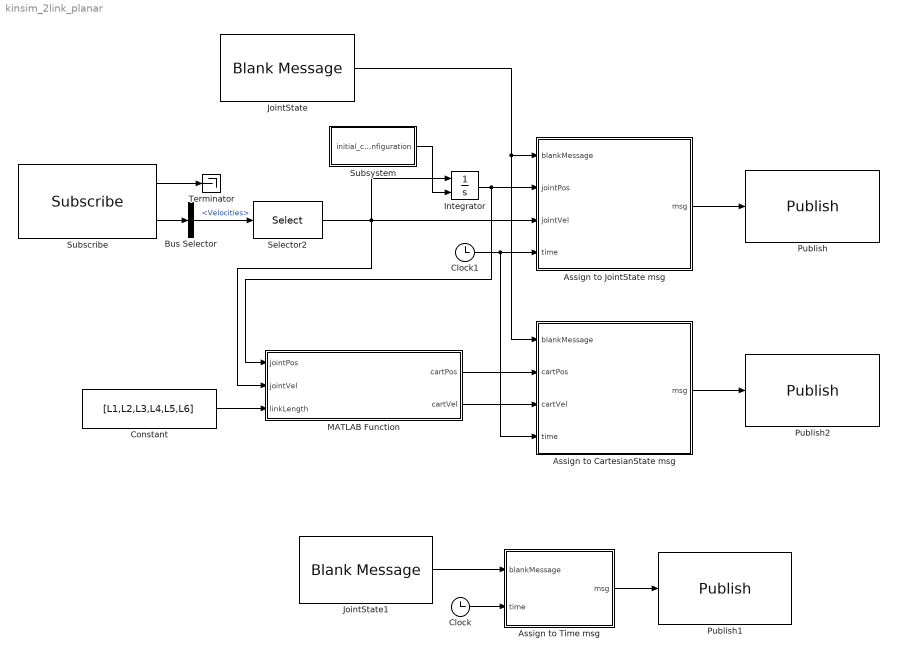
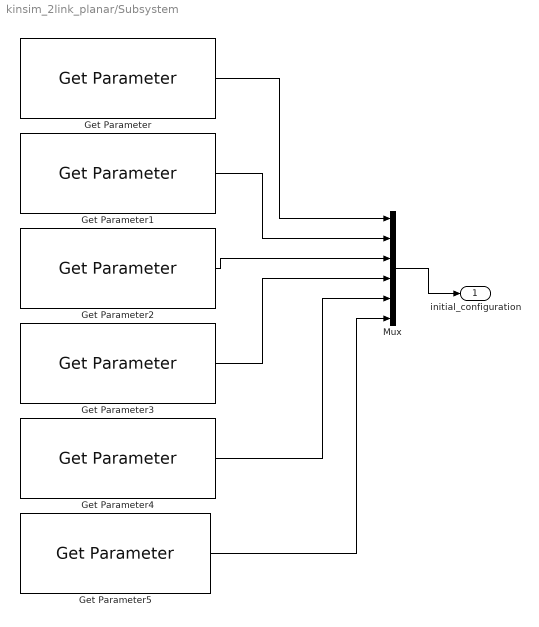
== matlab function kinsim_2link_planar/Assign to Time msg ==
function msg = assign_Time(blankMessage,time)
%#codegen

% Assign the output message to be the same with input blank message
msg = blankMessage;

% Convert and set time
msg.Clock_.Sec  = fix(time);
msg.Clock_.Nsec = fix((time-fix(time))*1e9);

== matlab function kinsim_2link_planar/Assign to JointState msg ==
function msg = assign_JointState(blankMessage,jointPos,jointVel,time)
%#codegen

% Assign the output message to be the same with input blank message
msg = blankMessage;

% Initialize time stamp
msg.Header.Stamp.Sec  = fix(time);
msg.Header.Stamp.Nsec = fix((time-fix(time))*1e9);

% Set the number of strings in the string array, and joint positions/velocities in the position/velocity array
numJoints = length(jointPos);
msg.Name_SL_Info.CurrentLength = uint32(numJoints);
msg.Position_SL_Info.CurrentLength = uint32(numJoints);
msg.Velocity_SL_Info.CurrentLength = uint32(numJoints);

% Set the individual components in the message arrays
strArrayToAssign = {'edo_joint_1', 'edo_joint_2', 'edo_joint_3', 'edo_joint_4', 'edo_joint_5', 'edo_joint_6'};

for idx=1:numJoints
    str = strArrayToAssign{idx};
    strLength = length(str);
    msg.Name(idx).Data(1:strLength) = uint8(str);
    msg.Name(idx).Data_SL_Info.CurrentLength = uint32(strLength);

    msg.Position(idx) = jointPos(idx);
    msg.Velocity(idx) = jointVel(idx);
end

== matlab function kinsim_2link_planar/MATLAB Function ==
function [cartPos, cartVel] = forward_kinematics_2link(jointPos,jointVel,linkLength)

cartPos = zeros(1,2);
cartVel = zeros(1,2);

L1 = linkLength(1);
L2 = linkLength(2);
L3 = linkLength(3);
L4 = linkLength(4);
L5 = linkLength(5);
L6 = linkLength(6);
q1 = jointPos(1);
q2 = jointPos(2);
q3 = jointPos(3);
q4 = jointPos(4);
q5 = jointPos(5);
q6 = jointPos(6);
qv1 = jointVel(1);
qv2 = jointVel(2);
qv3 = jointVel(3);
qv4 = jointVel(4);
qv5 = jointVel(5);
qv6 = jointVel(6);

cartPos(1) = L1*cos(q1)+L2*cos(q1+q2)+L3*cos(q1+q2+q3)+L4*cos(q1+q2+q3+q4)+L5*cos(q1+q2+q3+q4+q5)+L6*cos(q1+q2+q3+q4+q5+q6);
cartPos(2) = L1*sin(q1)+L2*sin(q1+q2)+L3*sin(q1+q2+q3)+L4*sin(q1+q2+q3+q4)+L5*sin(q1+q2+q3+q4+q5)+L6*sin(q1+q2+q3+q4+q5+q6);
cartVel(1) = -L1*qv1*sin(q1)-L2*(qv1+qv2)*sin(q1+q2)-L3*(qv1+qv2+qv3)*sin(q1+q2+q3)-L4*(qv1+qv2+qv3+qv4)*sin(q1+q2+q3+q4)-L5*(qv1+qv2+qv3+qv4+qv5)*sin(q1+q2+q3+q4+q5)-L6*(qv1+qv2+qv3+qv4+qv5+qv6)*sin(q1+q2+q3+q4+q5+q6);
cartVel(2) = L1*qv1*cos(q1)+L2*(qv1+qv2)*cos(q1+q2)+L3*(qv1+qv2+qv3)*cos(q1+q2+q3)+L4*(qv1+qv2+qv3+qv4)*cos(q1+q2+q3+q4)+L5*(qv1+qv2+qv3+qv4+qv5)*cos(q1+q2+q3+q4+q5)+L6*(qv1+qv2+qv3+qv4+qv5+qv6)*cos(q1+q2+q3+q4+q5+q6);

== matlab function kinsim_2link_planar/Assign to CartesianState msg ==
function msg = assign_CartesianState(blankMessage,cartPos,cartVel,time)
%#codegen

% Assign the output message to be the same with input blank message
msg = blankMessage;

% Initialize time stamp
msg.Header.Stamp.Sec  = fix(time);
msg.Header.Stamp.Nsec = fix((time-fix(time))*1e9);

% Set the number of strings in the string array, and joint positions/velocities in the position/velocity array
numCoordinates = length(cartPos);
msg.Name_SL_Info.CurrentLength = uint32(numCoordinates);
msg.Position_SL_Info.CurrentLength = uint32(numCoordinates);
msg.Velocity_SL_Info.CurrentLength = uint32(numCoordinates);

% Set the individual components in the message arrays
strArrayToAssign = {'edo_joint_1', 'edo_joint_2', 'edo_joint_3', 'edo_joint_4', 'edo_joint_5', 'edo_joint_6'};

for idx=1:numCoordinates
    str = strArrayToAssign{idx};
    strLength = length(str);
    msg.Name(idx).Data(1:strLength) = uint8(str);
    msg.Name(idx).Data_SL_Info.CurrentLength = uint32(strLength);

    msg.Position(idx) = cartPos(idx);
    msg.Velocity(idx) = cartVel(idx);
end

//
// Academic License - for use in teaching, academic research, and meeting
// course requirements at degree granting institutions only.  Not for
// government, commercial, or other organizational use.
//
// File: kinsim_2link_planar.cpp
//
// Code generated for Simulink model 'kinsim_2link_planar'.
//
// Model version                  : 1.126
// Simulink Coder version         : 9.3 (R2020a) 18-Nov-2019
// C/C++ source code generated on : Tue May 12 16:23:02 2020
//
// Target selection: ert.tlc
// Embedded hardware selection: Generic->Unspecified (assume 32-bit Generic)
// Code generation objectives: Unspecified
// Validation result: Not run
//
#include "kinsim_2link_planar.h"
#include "kinsim_2link_planar_private.h"

// Block signals (default storage)
B_kinsim_2link_planar_T kinsim_2link_planar_B;

// Continuous states
X_kinsim_2link_planar_T kinsim_2link_planar_X;

// Block states (default storage)
DW_kinsim_2link_planar_T kinsim_2link_planar_DW;

// Real-time model
RT_MODEL_kinsim_2link_planar_T kinsim_2link_planar_M_ =
  RT_MODEL_kinsim_2link_planar_T();
RT_MODEL_kinsim_2link_planar_T *const kinsim_2link_planar_M =
  &kinsim_2link_planar_M_;

// Forward declaration for local functions
static void kinsim_2link_pl_SystemCore_step(boolean_T *varargout_1, real_T
  varargout_2_Positions[128], uint32_T *varargout_2_Positions_SL_Info_C,
  uint32_T *varargout_2_Positions_SL_Info_R, real_T varargout_2_Velocities[128],
  uint32_T *varargout_2_Velocities_SL_Info_, uint32_T
  *varargout_2_Velocities_SL_Inf_0, real_T varargout_2_Accelerations[128],
  uint32_T *varargout_2_Accelerations_SL_In, uint32_T
  *varargout_2_Accelerations_SL__0, real_T varargout_2_Effort[128], uint32_T
  *varargout_2_Effort_SL_Info_Curr, uint32_T *varargout_2_Effort_SL_Info_Rece,
  real_T *varargout_2_TimeFromStart_Sec, real_T *varargout_2_TimeFromStart_Nsec);
static void matlabCodegenHandle_matlab_li5a(ros_slros_internal_block_GetP_T *obj);
static void matlabCodegenHandle_matlabC_li5(ros_slros_internal_block_Subs_T *obj);
static void matlabCodegenHandle_matlabCodeg(ros_slros_internal_block_Publ_T *obj);

//
// This function updates continuous states using the ODE3 fixed-step
// solver algorithm
//
static void rt_ertODEUpdateContinuousStates(RTWSolverInfo *si )
{
  // Solver Matrices
  static const real_T rt_ODE3_A[3] = {
    1.0/2.0, 3.0/4.0, 1.0
  };

  static const real_T rt_ODE3_B[3][3] = {
    { 1.0/2.0, 0.0, 0.0 },

    { 0.0, 3.0/4.0, 0.0 },

    { 2.0/9.0, 1.0/3.0, 4.0/9.0 }
  };

  time_T t = rtsiGetT(si);
  time_T tnew = rtsiGetSolverStopTime(si);
  time_T h = rtsiGetStepSize(si);
  real_T *x = rtsiGetContStates(si);
  ODE3_IntgData *id = static_cast<ODE3_IntgData *>(rtsiGetSolverData(si));
  real_T *y = id->y;
  real_T *f0 = id->f[0];
  real_T *f1 = id->f[1];
  real_T *f2 = id->f[2];
  real_T hB[3];
  int_T i;
  int_T nXc = 6;
  rtsiSetSimTimeStep(si,MINOR_TIME_STEP);

  // Save the state values at time t in y, we'll use x as ynew.
  (void) memcpy(y, x,
                static_cast<uint_T>(nXc)*sizeof(real_T));

  // Assumes that rtsiSetT and ModelOutputs are up-to-date
  // f0 = f(t,y)
  rtsiSetdX(si, f0);
  kinsim_2link_planar_derivatives();

  // f(:,2) = feval(odefile, t + hA(1), y + f*hB(:,1), args(:)(*));
  hB[0] = h * rt_ODE3_B[0][0];
  for (i = 0; i < nXc; i++) {
    x[i] = y[i] + (f0[i]*hB[0]);
  }

  rtsiSetT(si, t + h*rt_ODE3_A[0]);
  rtsiSetdX(si, f1);
  kinsim_2link_planar_step();
  kinsim_2link_planar_derivatives();

  // f(:,3) = feval(odefile, t + hA(2), y + f*hB(:,2), args(:)(*));
  for (i = 0; i <= 1; i++) {
    hB[i] = h * rt_ODE3_B[1][i];
  }

  for (i = 0; i < nXc; i++) {
    x[i] = y[i] + (f0[i]*hB[0] + f1[i]*hB[1]);
  }

  rtsiSetT(si, t + h*rt_ODE3_A[1]);
  rtsiSetdX(si, f2);
  kinsim_2link_planar_step();
  kinsim_2link_planar_derivatives();

  // tnew = t + hA(3);
  // ynew = y + f*hB(:,3);
  for (i = 0; i <= 2; i++) {
    hB[i] = h * rt_ODE3_B[2][i];
  }

  for (i = 0; i < nXc; i++) {
    x[i] = y[i] + (f0[i]*hB[0] + f1[i]*hB[1] + f2[i]*hB[2]);
  }

  rtsiSetT(si, tnew);
  rtsiSetSimTimeStep(si,MAJOR_TIME_STEP);
}

static void kinsim_2link_pl_SystemCore_step(boolean_T *varargout_1, real_T
  varargout_2_Positions[128], uint32_T *varargout_2_Positions_SL_Info_C,
  uint32_T *varargout_2_Positions_SL_Info_R, real_T varargout_2_Velocities[128],
  uint32_T *varargout_2_Velocities_SL_Info_, uint32_T
  *varargout_2_Velocities_SL_Inf_0, real_T varargout_2_Accelerations[128],
  uint32_T *varargout_2_Accelerations_SL_In, uint32_T
  *varargout_2_Accelerations_SL__0, real_T varargout_2_Effort[128], uint32_T
  *varargout_2_Effort_SL_Info_Curr, uint32_T *varargout_2_Effort_SL_Info_Rece,
  real_T *varargout_2_TimeFromStart_Sec, real_T *varargout_2_TimeFromStart_Nsec)
{
  *varargout_1 = Sub_kinsim_2link_planar_16.getLatestMessage
    (&kinsim_2link_planar_B.b_varargout_2);
  *varargout_2_Positions_SL_Info_C =
    kinsim_2link_planar_B.b_varargout_2.Positions_SL_Info.CurrentLength;
  *varargout_2_Positions_SL_Info_R =
    kinsim_2link_planar_B.b_varargout_2.Positions_SL_Info.ReceivedLength;
  *varargout_2_Velocities_SL_Info_ =
    kinsim_2link_planar_B.b_varargout_2.Velocities_SL_Info.CurrentLength;
  *varargout_2_Velocities_SL_Inf_0 =
    kinsim_2link_planar_B.b_varargout_2.Velocities_SL_Info.ReceivedLength;
  *varargout_2_Accelerations_SL_In =
    kinsim_2link_planar_B.b_varargout_2.Accelerations_SL_Info.CurrentLength;
  *varargout_2_Accelerations_SL__0 =
    kinsim_2link_planar_B.b_varargout_2.Accelerations_SL_Info.ReceivedLength;
  memcpy(&varargout_2_Positions[0],
         &kinsim_2link_planar_B.b_varargout_2.Positions[0], sizeof(real_T) << 7U);
  memcpy(&varargout_2_Velocities[0],
         &kinsim_2link_planar_B.b_varargout_2.Velocities[0], sizeof(real_T) <<
         7U);
  memcpy(&varargout_2_Accelerations[0],
         &kinsim_2link_planar_B.b_varargout_2.Accelerations[0], sizeof(real_T) <<
         7U);
  memcpy(&varargout_2_Effort[0], &kinsim_2link_planar_B.b_varargout_2.Effort[0],
         sizeof(real_T) << 7U);
  *varargout_2_Effort_SL_Info_Curr =
    kinsim_2link_planar_B.b_varargout_2.Effort_SL_Info.CurrentLength;
  *varargout_2_Effort_SL_Info_Rece =
    kinsim_2link_planar_B.b_varargout_2.Effort_SL_Info.ReceivedLength;
  *varargout_2_TimeFromStart_Sec =
    kinsim_2link_planar_B.b_varargout_2.TimeFromStart.Sec;
  *varargout_2_TimeFromStart_Nsec =
    kinsim_2link_planar_B.b_varargout_2.TimeFromStart.Nsec;
}

static void matlabCodegenHandle_matlab_li5a(ros_slros_internal_block_GetP_T *obj)
{
  if (!obj->matlabCodegenIsDeleted) {
    obj->matlabCodegenIsDeleted = true;
  }
}

static void matlabCodegenHandle_matlabC_li5(ros_slros_internal_block_Subs_T *obj)
{
  if (!obj->matlabCodegenIsDeleted) {
    obj->matlabCodegenIsDeleted = true;
  }
}

static void matlabCodegenHandle_matlabCodeg(ros_slros_internal_block_Publ_T *obj)
{
  if (!obj->matlabCodegenIsDeleted) {
    obj->matlabCodegenIsDeleted = true;
  }
}

// Model step function
void kinsim_2link_planar_step(void)
{
  uint32_T b_varargout_2_Positions_SL_Info;
  uint32_T b_varargout_2_Positions_SL_In_0;
  uint32_T b_varargout_2_Velocities_SL_Inf;
  uint32_T b_varargout_2_Velocities_SL_I_0;
  uint32_T b_varargout_2_Accelerations_SL_;
  uint32_T b_varargout_2_Accelerations_S_0;
  uint32_T b_varargout_2_Effort_SL_Info_Cu;
  uint32_T b_varargout_2_Effort_SL_Info_Re;
  boolean_T b_varargout_1;
  int32_T i;
  real_T tmp;
  real_T tmp_0;
  real_T tmp_1;
  static const char_T h[11] = { 'e', 'd', 'o', '_', 'j', 'o', 'i', 'n', 't', '_',
    '1' };

  static const char_T i_0[11] = { 'e', 'd', 'o', '_', 'j', 'o', 'i', 'n', 't',
    '_', '2' };

  static const char_T j[11] = { 'e', 'd', 'o', '_', 'j', 'o', 'i', 'n', 't', '_',
    '3' };

  static const char_T k[11] = { 'e', 'd', 'o', '_', 'j', 'o', 'i', 'n', 't', '_',
    '4' };

  static const char_T l[11] = { 'e', 'd', 'o', '_', 'j', 'o', 'i', 'n', 't', '_',
    '5' };

  static const char_T m[11] = { 'e', 'd', 'o', '_', 'j', 'o', 'i', 'n', 't', '_',
    '6' };

  if (rtmIsMajorTimeStep(kinsim_2link_planar_M)) {
    // set solver stop time
    rtsiSetSolverStopTime(&kinsim_2link_planar_M->solverInfo,
                          ((kinsim_2link_planar_M->Timing.clockTick0+1)*
      kinsim_2link_planar_M->Timing.stepSize0));
  }                                    // end MajorTimeStep

  // Update absolute time of base rate at minor time step
  if (rtmIsMinorTimeStep(kinsim_2link_planar_M)) {
    kinsim_2link_planar_M->Timing.t[0] = rtsiGetT
      (&kinsim_2link_planar_M->solverInfo);
  }

  // MATLABSystem: '<S11>/Get Parameter'
  ParamGet_kinsim_2link_planar_61.get_parameter(&kinsim_2link_planar_B.value);

  // MATLABSystem: '<S11>/Get Parameter1'
  ParamGet_kinsim_2link_planar_65.get_parameter(&kinsim_2link_planar_B.value_m);

  // MATLABSystem: '<S11>/Get Parameter2'
  ParamGet_kinsim_2link_planar_81.get_parameter(&kinsim_2link_planar_B.value_c);

  // MATLABSystem: '<S11>/Get Parameter3'
  ParamGet_kinsim_2link_planar_82.get_parameter(&kinsim_2link_planar_B.value_k);

  // MATLABSystem: '<S11>/Get Parameter4'
  ParamGet_kinsim_2link_planar_83.get_parameter(&kinsim_2link_planar_B.value_cx);

  // MATLABSystem: '<S11>/Get Parameter5'
  ParamGet_kinsim_2link_planar_84.get_parameter(&kinsim_2link_planar_B.value_b);

  // Integrator: '<Root>/Integrator' incorporates:
  //   MATLABSystem: '<S11>/Get Parameter'
  //   MATLABSystem: '<S11>/Get Parameter1'
  //   MATLABSystem: '<S11>/Get Parameter2'
  //   MATLABSystem: '<S11>/Get Parameter3'
  //   MATLABSystem: '<S11>/Get Parameter4'
  //   MATLABSystem: '<S11>/Get Parameter5'

  if (kinsim_2link_planar_DW.Integrator_IWORK != 0) {
    kinsim_2link_planar_X.Integrator_CSTATE[0] = kinsim_2link_planar_B.value;
    kinsim_2link_planar_X.Integrator_CSTATE[1] = kinsim_2link_planar_B.value_m;
    kinsim_2link_planar_X.Integrator_CSTATE[2] = kinsim_2link_planar_B.value_c;
    kinsim_2link_planar_X.Integrator_CSTATE[3] = kinsim_2link_planar_B.value_k;
    kinsim_2link_planar_X.Integrator_CSTATE[4] = kinsim_2link_planar_B.value_cx;
    kinsim_2link_planar_X.Integrator_CSTATE[5] = kinsim_2link_planar_B.value_b;
  }

  if (rtmIsMajorTimeStep(kinsim_2link_planar_M)) {
    // Outputs for Atomic SubSystem: '<Root>/Subscribe'
    // MATLABSystem: '<S10>/SourceBlock' incorporates:
    //   Inport: '<S12>/In1'

    kinsim_2link_pl_SystemCore_step(&b_varargout_1,
      kinsim_2link_planar_B.b_varargout_2_Positions,
      &b_varargout_2_Positions_SL_Info, &b_varargout_2_Positions_SL_In_0,
      kinsim_2link_planar_B.b_varargout_2_Velocities,
      &b_varargout_2_Velocities_SL_Inf, &b_varargout_2_Velocities_SL_I_0,
      kinsim_2link_planar_B.b_varargout_2_Accelerations,
      &b_varargout_2_Accelerations_SL_, &b_varargout_2_Accelerations_S_0,
      kinsim_2link_planar_B.b_varargout_2_Effort,
      &b_varargout_2_Effort_SL_Info_Cu, &b_varargout_2_Effort_SL_Info_Re,
      &kinsim_2link_planar_B.value, &kinsim_2link_planar_B.value_m);

    // Outputs for Enabled SubSystem: '<S10>/Enabled Subsystem' incorporates:
    //   EnablePort: '<S12>/Enable'

    if (b_varargout_1) {
      kinsim_2link_planar_B.In1.Positions_SL_Info.CurrentLength =
        b_varargout_2_Positions_SL_Info;
      kinsim_2link_planar_B.In1.Positions_SL_Info.ReceivedLength =
        b_varargout_2_Positions_SL_In_0;
      kinsim_2link_planar_B.In1.Velocities_SL_Info.CurrentLength =
        b_varargout_2_Velocities_SL_Inf;
      kinsim_2link_planar_B.In1.Velocities_SL_Info.ReceivedLength =
        b_varargout_2_Velocities_SL_I_0;
      kinsim_2link_planar_B.In1.Accelerations_SL_Info.CurrentLength =
        b_varargout_2_Accelerations_SL_;
      kinsim_2link_planar_B.In1.Accelerations_SL_Info.ReceivedLength =
        b_varargout_2_Accelerations_S_0;
      memcpy(&kinsim_2link_planar_B.In1.Positions[0],
             &kinsim_2link_planar_B.b_varargout_2_Positions[0], sizeof(real_T) <<
             7U);
      memcpy(&kinsim_2link_planar_B.In1.Velocities[0],
             &kinsim_2link_planar_B.b_varargout_2_Velocities[0], sizeof(real_T) <<
             7U);
      memcpy(&kinsim_2link_planar_B.In1.Accelerations[0],
             &kinsim_2link_planar_B.b_varargout_2_Accelerations[0], sizeof
             (real_T) << 7U);
      memcpy(&kinsim_2link_planar_B.In1.Effort[0],
             &kinsim_2link_planar_B.b_varargout_2_Effort[0], sizeof(real_T) <<
             7U);
      kinsim_2link_planar_B.In1.Effort_SL_Info.CurrentLength =
        b_varargout_2_Effort_SL_Info_Cu;
      kinsim_2link_planar_B.In1.Effort_SL_Info.ReceivedLength =
        b_varargout_2_Effort_SL_Info_Re;
      kinsim_2link_planar_B.In1.TimeFromStart.Sec = kinsim_2link_planar_B.value;
      kinsim_2link_planar_B.In1.TimeFromStart.Nsec =
        kinsim_2link_planar_B.value_m;
    }

    // End of MATLABSystem: '<S10>/SourceBlock'
    // End of Outputs for SubSystem: '<S10>/Enabled Subsystem'
    // End of Outputs for SubSystem: '<Root>/Subscribe'
  }

  // Clock: '<Root>/Clock1' incorporates:
  //   Clock: '<Root>/Clock'

  kinsim_2link_planar_B.value = kinsim_2link_planar_M->Timing.t[0];

  // MATLAB Function: '<Root>/Assign to CartesianState msg' incorporates:
  //   Clock: '<Root>/Clock1'
  //   Constant: '<S4>/Constant'

  kinsim_2link_planar_B.msg_d = kinsim_2link_planar_P.Constant_Value;
  if (kinsim_2link_planar_B.value < 0.0) {
    // MATLAB Function: '<Root>/Assign to JointState msg'
    kinsim_2link_planar_B.value_m = ceil(kinsim_2link_planar_B.value);
  } else {
    // MATLAB Function: '<Root>/Assign to JointState msg'
    kinsim_2link_planar_B.value_m = floor(kinsim_2link_planar_B.value);
  }

  kinsim_2link_planar_B.msg_d.Header.Stamp.Sec = kinsim_2link_planar_B.value_m;
  kinsim_2link_planar_B.value_c = (kinsim_2link_planar_B.value -
    kinsim_2link_planar_B.value_m) * 1.0E+9;
  if (kinsim_2link_planar_B.value_c < 0.0) {
    // MATLAB Function: '<Root>/Assign to JointState msg'
    kinsim_2link_planar_B.value_c = ceil(kinsim_2link_planar_B.value_c);
  } else {
    // MATLAB Function: '<Root>/Assign to JointState msg'
    kinsim_2link_planar_B.value_c = floor(kinsim_2link_planar_B.value_c);
  }

  kinsim_2link_planar_B.msg_d.Header.Stamp.Nsec = kinsim_2link_planar_B.value_c;
  kinsim_2link_planar_B.msg_d.Name_SL_Info.CurrentLength = 2U;
  kinsim_2link_planar_B.msg_d.Position_SL_Info.CurrentLength = 2U;
  kinsim_2link_planar_B.msg_d.Velocity_SL_Info.CurrentLength = 2U;
  kinsim_2link_planar_B.msg_d.Name[0].Data_SL_Info.CurrentLength = 11U;

  // MATLAB Function: '<Root>/MATLAB Function' incorporates:
  //   Integrator: '<Root>/Integrator'

  kinsim_2link_planar_B.value_k = cos(kinsim_2link_planar_X.Integrator_CSTATE[0]);
  kinsim_2link_planar_B.value_cx = kinsim_2link_planar_X.Integrator_CSTATE[0] +
    kinsim_2link_planar_X.Integrator_CSTATE[1];
  kinsim_2link_planar_B.value_b = cos(kinsim_2link_planar_B.value_cx);
  kinsim_2link_planar_B.d5 = kinsim_2link_planar_B.value_cx +
    kinsim_2link_planar_X.Integrator_CSTATE[2];
  kinsim_2link_planar_B.d1 = cos(kinsim_2link_planar_B.d5);
  kinsim_2link_planar_B.d6 = kinsim_2link_planar_B.d5 +
    kinsim_2link_planar_X.Integrator_CSTATE[3];
  kinsim_2link_planar_B.d2 = cos(kinsim_2link_planar_B.d6);
  kinsim_2link_planar_B.d7 = kinsim_2link_planar_B.d6 +
    kinsim_2link_planar_X.Integrator_CSTATE[4];
  kinsim_2link_planar_B.d3 = cos(kinsim_2link_planar_B.d7);
  kinsim_2link_planar_B.d8 = kinsim_2link_planar_B.d7 +
    kinsim_2link_planar_X.Integrator_CSTATE[5];
  kinsim_2link_planar_B.d4 = cos(kinsim_2link_planar_B.d8);

  // MATLAB Function: '<Root>/Assign to CartesianState msg' incorporates:
  //   Constant: '<Root>/Constant'
  //   MATLAB Function: '<Root>/MATLAB Function'

  kinsim_2link_planar_B.msg_d.Position[0] =
    ((((kinsim_2link_planar_P.Constant_Value_m[0] *
        kinsim_2link_planar_B.value_k + kinsim_2link_planar_P.Constant_Value_m[1]
        * kinsim_2link_planar_B.value_b) +
       kinsim_2link_planar_P.Constant_Value_m[2] * kinsim_2link_planar_B.d1) +
      kinsim_2link_planar_P.Constant_Value_m[3] * kinsim_2link_planar_B.d2) +
     kinsim_2link_planar_P.Constant_Value_m[4] * kinsim_2link_planar_B.d3) +
    kinsim_2link_planar_P.Constant_Value_m[5] * kinsim_2link_planar_B.d4;

  // MATLAB Function: '<Root>/MATLAB Function' incorporates:
  //   Constant: '<Root>/Constant'
  //   Integrator: '<Root>/Integrator'

  kinsim_2link_planar_B.d_p = sin(kinsim_2link_planar_X.Integrator_CSTATE[0]);
  kinsim_2link_planar_B.value_cx = sin(kinsim_2link_planar_B.value_cx);
  kinsim_2link_planar_B.d5 = sin(kinsim_2link_planar_B.d5);
  kinsim_2link_planar_B.d6 = sin(kinsim_2link_planar_B.d6);
  kinsim_2link_planar_B.d7 = sin(kinsim_2link_planar_B.d7);
  kinsim_2link_planar_B.d8 = sin(kinsim_2link_planar_B.d8);
  kinsim_2link_planar_B.d9 = kinsim_2link_planar_B.In1.Velocities[1] +
    kinsim_2link_planar_B.In1.Velocities[2];
  kinsim_2link_planar_B.d10 = kinsim_2link_planar_B.d9 +
    kinsim_2link_planar_B.In1.Velocities[3];
  tmp = kinsim_2link_planar_B.d10 + kinsim_2link_planar_B.In1.Velocities[4];
  tmp_0 = tmp + kinsim_2link_planar_B.In1.Velocities[5];
  kinsim_2link_planar_B.d9 *= kinsim_2link_planar_P.Constant_Value_m[1];
  kinsim_2link_planar_B.d10 *= kinsim_2link_planar_P.Constant_Value_m[2];
  tmp *= kinsim_2link_planar_P.Constant_Value_m[3];
  tmp_1 = tmp_0 * kinsim_2link_planar_P.Constant_Value_m[4];
  tmp_0 = (tmp_0 + kinsim_2link_planar_B.In1.Velocities[6]) *
    kinsim_2link_planar_P.Constant_Value_m[5];

  // MATLAB Function: '<Root>/Assign to CartesianState msg' incorporates:
  //   Constant: '<Root>/Constant'
  //   MATLAB Function: '<Root>/MATLAB Function'

  kinsim_2link_planar_B.msg_d.Velocity[0] =
    ((((-kinsim_2link_planar_P.Constant_Value_m[0] *
        kinsim_2link_planar_B.In1.Velocities[1] * kinsim_2link_planar_B.d_p -
        kinsim_2link_planar_B.d9 * kinsim_2link_planar_B.value_cx) -
       kinsim_2link_planar_B.d10 * kinsim_2link_planar_B.d5) - tmp *
      kinsim_2link_planar_B.d6) - tmp_1 * kinsim_2link_planar_B.d7) - tmp_0 *
    kinsim_2link_planar_B.d8;
  for (i = 0; i < 11; i++) {
    kinsim_2link_planar_B.b.f1[i] = h[i];
    kinsim_2link_planar_B.c.f1[i] = i_0[i];
    kinsim_2link_planar_B.msg_d.Name[0].Data[i] = static_cast<uint8_T>
      (kinsim_2link_planar_B.b.f1[i]);
    kinsim_2link_planar_B.msg_d.Name[1].Data[i] = static_cast<uint8_T>
      (kinsim_2link_planar_B.c.f1[i]);
  }

  kinsim_2link_planar_B.msg_d.Name[1].Data_SL_Info.CurrentLength = 11U;
  kinsim_2link_planar_B.msg_d.Position[1] =
    ((((kinsim_2link_planar_P.Constant_Value_m[0] * kinsim_2link_planar_B.d_p +
        kinsim_2link_planar_P.Constant_Value_m[1] *
        kinsim_2link_planar_B.value_cx) +
       kinsim_2link_planar_P.Constant_Value_m[2] * kinsim_2link_planar_B.d5) +
      kinsim_2link_planar_P.Constant_Value_m[3] * kinsim_2link_planar_B.d6) +
     kinsim_2link_planar_P.Constant_Value_m[4] * kinsim_2link_planar_B.d7) +
    kinsim_2link_planar_P.Constant_Value_m[5] * kinsim_2link_planar_B.d8;
  kinsim_2link_planar_B.msg_d.Velocity[1] = ((((kinsim_2link_planar_B.d9 *
    kinsim_2link_planar_B.value_b + kinsim_2link_planar_P.Constant_Value_m[0] *
    kinsim_2link_planar_B.In1.Velocities[1] * kinsim_2link_planar_B.value_k) +
    kinsim_2link_planar_B.d10 * kinsim_2link_planar_B.d1) + tmp *
    kinsim_2link_planar_B.d2) + tmp_1 * kinsim_2link_planar_B.d3) + tmp_0 *
    kinsim_2link_planar_B.d4;

  // Outputs for Atomic SubSystem: '<Root>/Publish2'
  // MATLABSystem: '<S9>/SinkBlock'
  Pub_kinsim_2link_planar_79.publish(&kinsim_2link_planar_B.msg_d);

  // End of Outputs for SubSystem: '<Root>/Publish2'

  // MATLAB Function: '<Root>/Assign to JointState msg' incorporates:
  //   Constant: '<S4>/Constant'
  //   Integrator: '<Root>/Integrator'

  kinsim_2link_planar_B.msg_d = kinsim_2link_planar_P.Constant_Value;
  kinsim_2link_planar_B.msg_d.Header.Stamp.Sec = kinsim_2link_planar_B.value_m;
  kinsim_2link_planar_B.msg_d.Header.Stamp.Nsec = kinsim_2link_planar_B.value_c;
  kinsim_2link_planar_B.msg_d.Name_SL_Info.CurrentLength = 6U;
  kinsim_2link_planar_B.msg_d.Position_SL_Info.CurrentLength = 6U;
  kinsim_2link_planar_B.msg_d.Velocity_SL_Info.CurrentLength = 6U;
  kinsim_2link_planar_B.msg_d.Name[0].Data_SL_Info.CurrentLength = 11U;
  kinsim_2link_planar_B.msg_d.Position[0] =
    kinsim_2link_planar_X.Integrator_CSTATE[0];
  kinsim_2link_planar_B.msg_d.Velocity[0] =
    kinsim_2link_planar_B.In1.Velocities[1];
  kinsim_2link_planar_B.msg_d.Name[1].Data_SL_Info.CurrentLength = 11U;
  kinsim_2link_planar_B.msg_d.Position[1] =
    kinsim_2link_planar_X.Integrator_CSTATE[1];
  kinsim_2link_planar_B.msg_d.Velocity[1] =
    kinsim_2link_planar_B.In1.Velocities[2];
  kinsim_2link_planar_B.msg_d.Name[2].Data_SL_Info.CurrentLength = 11U;
  kinsim_2link_planar_B.msg_d.Position[2] =
    kinsim_2link_planar_X.Integrator_CSTATE[2];
  kinsim_2link_planar_B.msg_d.Velocity[2] =
    kinsim_2link_planar_B.In1.Velocities[3];
  kinsim_2link_planar_B.msg_d.Name[3].Data_SL_Info.CurrentLength = 11U;
  kinsim_2link_planar_B.msg_d.Position[3] =
    kinsim_2link_planar_X.Integrator_CSTATE[3];
  kinsim_2link_planar_B.msg_d.Velocity[3] =
    kinsim_2link_planar_B.In1.Velocities[4];
  kinsim_2link_planar_B.msg_d.Name[4].Data_SL_Info.CurrentLength = 11U;
  kinsim_2link_planar_B.msg_d.Position[4] =
    kinsim_2link_planar_X.Integrator_CSTATE[4];
  kinsim_2link_planar_B.msg_d.Velocity[4] =
    kinsim_2link_planar_B.In1.Velocities[5];
  for (i = 0; i < 11; i++) {
    kinsim_2link_planar_B.b.f1[i] = h[i];
    kinsim_2link_planar_B.c.f1[i] = i_0[i];
    kinsim_2link_planar_B.d.f1[i] = j[i];
    kinsim_2link_planar_B.e.f1[i] = k[i];
    kinsim_2link_planar_B.f.f1[i] = l[i];
    kinsim_2link_planar_B.g.f1[i] = m[i];
    kinsim_2link_planar_B.msg_d.Name[0].Data[i] = static_cast<uint8_T>
      (kinsim_2link_planar_B.b.f1[i]);
    kinsim_2link_planar_B.msg_d.Name[1].Data[i] = static_cast<uint8_T>
      (kinsim_2link_planar_B.c.f1[i]);
    kinsim_2link_planar_B.msg_d.Name[2].Data[i] = static_cast<uint8_T>
      (kinsim_2link_planar_B.d.f1[i]);
    kinsim_2link_planar_B.msg_d.Name[3].Data[i] = static_cast<uint8_T>
      (kinsim_2link_planar_B.e.f1[i]);
    kinsim_2link_planar_B.msg_d.Name[4].Data[i] = static_cast<uint8_T>
      (kinsim_2link_planar_B.f.f1[i]);
    kinsim_2link_planar_B.msg_d.Name[5].Data[i] = static_cast<uint8_T>
      (kinsim_2link_planar_B.g.f1[i]);
  }

  kinsim_2link_planar_B.msg_d.Name[5].Data_SL_Info.CurrentLength = 11U;
  kinsim_2link_planar_B.msg_d.Position[5] =
    kinsim_2link_planar_X.Integrator_CSTATE[5];
  kinsim_2link_planar_B.msg_d.Velocity[5] =
    kinsim_2link_planar_B.In1.Velocities[6];

  // Outputs for Atomic SubSystem: '<Root>/Publish'
  // MATLABSystem: '<S7>/SinkBlock'
  Pub_kinsim_2link_planar_22.publish(&kinsim_2link_planar_B.msg_d);

  // End of Outputs for SubSystem: '<Root>/Publish'

  // MATLAB Function: '<Root>/Assign to Time msg'
  if (kinsim_2link_planar_B.value < 0.0) {
    kinsim_2link_planar_B.value_m = ceil(kinsim_2link_planar_B.value);
  } else {
    kinsim_2link_planar_B.value_m = floor(kinsim_2link_planar_B.value);
  }

  kinsim_2link_planar_B.msg_l.Clock_.Sec = kinsim_2link_planar_B.value_m;
  kinsim_2link_planar_B.value_c = (kinsim_2link_planar_B.value -
    kinsim_2link_planar_B.value_m) * 1.0E+9;
  if (kinsim_2link_planar_B.value_c < 0.0) {
    kinsim_2link_planar_B.msg_l.Clock_.Nsec = ceil(kinsim_2link_planar_B.value_c);
  } else {
    kinsim_2link_planar_B.msg_l.Clock_.Nsec = floor
      (kinsim_2link_planar_B.value_c);
  }

  // End of MATLAB Function: '<Root>/Assign to Time msg'

  // Outputs for Atomic SubSystem: '<Root>/Publish1'
  // MATLABSystem: '<S8>/SinkBlock'
  Pub_kinsim_2link_planar_50.publish(&kinsim_2link_planar_B.msg_l);

  // End of Outputs for SubSystem: '<Root>/Publish1'
  if (rtmIsMajorTimeStep(kinsim_2link_planar_M)) {
    // Update for Integrator: '<Root>/Integrator'
    kinsim_2link_planar_DW.Integrator_IWORK = 0;
  }                                    // end MajorTimeStep

  if (rtmIsMajorTimeStep(kinsim_2link_planar_M)) {
    rt_ertODEUpdateContinuousStates(&kinsim_2link_planar_M->solverInfo);

    // Update absolute time for base rate
    // The "clockTick0" counts the number of times the code of this task has
    //  been executed. The absolute time is the multiplication of "clockTick0"
    //  and "Timing.stepSize0". Size of "clockTick0" ensures timer will not
    //  overflow during the application lifespan selected.

    ++kinsim_2link_planar_M->Timing.clockTick0;
    kinsim_2link_planar_M->Timing.t[0] = rtsiGetSolverStopTime
      (&kinsim_2link_planar_M->solverInfo);

    {
      // Update absolute timer for sample time: [0.05s, 0.0s]
      // The "clockTick1" counts the number of times the code of this task has
      //  been executed. The resolution of this integer timer is 0.05, which is the step size
      //  of the task. Size of "clockTick1" ensures timer will not overflow during the
      //  application lifespan selected.

      kinsim_2link_planar_M->Timing.clockTick1++;
    }
  }                                    // end MajorTimeStep
}
